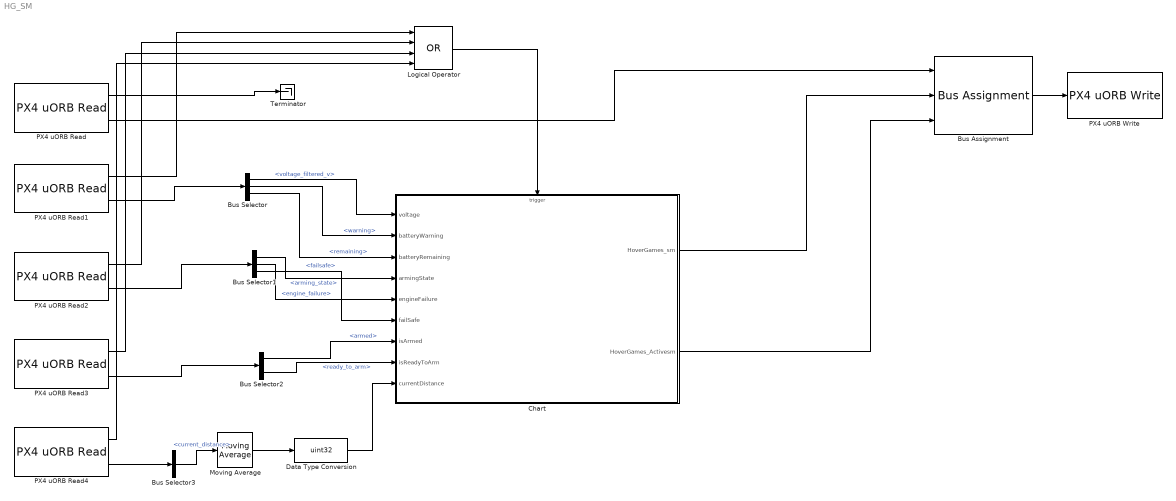
== stateflow chart HG_SM/Chart ==
  state Faulted
    HoverGames_sm = FAULTED_STATE;
  state Standby
    HoverGames_sm = STANDBY_STATE;
  state Active
    HoverGames_sm = ACTIVE_STATE;
    state Recording
      HoverGames_Activesm = RECORDING_STATE
    state Paused
      HoverGames_Activesm = PAUSED_STATE;
    state ImageCapture
      HoverGames_Activesm = IMAGE_CAPTURE_STATE
    (default) -> Paused
    Recording -> Paused [order 1] : [currentDistance <  100 || voltage < 13]
    Paused -> ImageCapture : [currentDistance >= 100]
    ImageCapture -> Paused [order 2] : [currentDistance <  100 || voltage < 13]
    ImageCapture -> Recording [order 1] : [currentDistance >= 1000]
    Recording -> ImageCapture [order 2] : [currentDistance < 1000]
  state PreActive
    HoverGames_sm = PREACTIVE_STATE;
  Faulted -> Standby : [engineFailure ==false || batteryWarning == 0 || failSafe == false]
  (default) -> Standby
  Standby -> Faulted [order 2] : [engineFailure == true || batteryWarning > 0 || failSafe == true||  batteryRemaining < 0.4]
  PreActive -> Faulted [order 3] : [engineFailure == true || batteryWarning > 0 || failSafe == true || batteryRemaining < 0.4]
  Active -> Faulted [order 1] : [engineFailure == true || batteryWarning > 0 || failSafe == true || batteryRemaining < 0.4]
  Standby -> PreActive [order 1] : [isReadyToArm==true]
  PreActive -> Standby [order 2] : [isArmed == false]
  Active -> PreActive [order 2] : [isArmed == false]
  PreActive -> Active [order 1] : [isArmed == true && armingState== ARMING_STATE_ARMED]
  data: voltage input single; batteryWarning input uint8; batteryRemaining input; armingState input uint8; engineFailure input boolean; failSafe input boolean; isArmed input boolean; isReadyToArm input boolean; currentDistance input uint32; HoverGames_sm output uint8; HoverGames_Activesm output uint8; STANDBY_STATE constant uint8 =0; PREACTIVE_STATE constant uint8 =1; ACTIVE_STATE constant uint8 =2; FAULTED_STATE constant uint8 =3; RECORDING_STATE constant uint8 =0; IMAGE_CAPTURE_STATE constant uint8 =1; PAUSED_STATE constant uint8 =2; ARMING_STATE_ARMED constant uint8 =2
  events: execute input RISING_EDGE_EVENT

//
// Academic License - for use in teaching, academic research, and meeting
// course requirements at degree granting institutions only.  Not for
// government, commercial, or other organizational use.
//
// File: HG_SM.cpp
//
// Code generated for Simulink model 'HG_SM'.
//
// Model version                  : 1.2
// Simulink Coder version         : 9.4 (R2020b) 29-Jul-2020
// C/C++ source code generated on : Tue Jan 26 21:36:23 2021
//
// Target selection: ert.tlc
// Embedded hardware selection: NXP->Cortex-M4
// Code generation objectives:
//    1. Execution efficiency
//    2. RAM efficiency
// Validation result: Not run
//
#include "HG_SM.h"

// Named constants for Chart: '<Root>/Chart'
const uint8_T ACTIVE_STATE = 2U;
const uint8_T FAULTED_STATE = 3U;
const uint8_T IMAGE_CAPTURE_STATE = 1U;
const uint8_T IN_Active = 1U;
const uint8_T IN_Faulted = 2U;
const uint8_T IN_ImageCapture = 1U;
const uint8_T IN_NO_ACTIVE_CHILD = 0U;
const uint8_T IN_Paused = 2U;
const uint8_T IN_PreActive = 3U;
const uint8_T IN_Recording = 3U;
const uint8_T IN_Standby = 4U;
const uint8_T PAUSED_STATE = 2U;
const uint8_T PREACTIVE_STATE = 1U;
const uint8_T RECORDING_STATE = 0U;
const uint8_T STANDBY_STATE = 0U;

#ifndef UCHAR_MAX
#include <limits.h>
#endif

#if ( UCHAR_MAX != (0xFFU) ) || ( SCHAR_MAX != (0x7F) )
#error Code was generated for compiler with different sized uchar/char. \
Consider adjusting Test hardware word size settings on the \
Hardware Implementation pane to match your compiler word sizes as \
defined in limits.h of the compiler. Alternatively, you can \
select the Test hardware is the same as production hardware option and \
select the Enable portable word sizes option on the Code Generation > \
Verification pane for ERT based targets, which will disable the \
preprocessor word size checks.
#endif

#if ( USHRT_MAX != (0xFFFFU) ) || ( SHRT_MAX != (0x7FFF) )
#error Code was generated for compiler with different sized ushort/short. \
Consider adjusting Test hardware word size settings on the \
Hardware Implementation pane to match your compiler word sizes as \
defined in limits.h of the compiler. Alternatively, you can \
select the Test hardware is the same as production hardware option and \
select the Enable portable word sizes option on the Code Generation > \
Verification pane for ERT based targets, which will disable the \
preprocessor word size checks.
#endif

#if ( UINT_MAX != (0xFFFFFFFFU) ) || ( INT_MAX != (0x7FFFFFFF) )
#error Code was generated for compiler with different sized uint/int. \
Consider adjusting Test hardware word size settings on the \
Hardware Implementation pane to match your compiler word sizes as \
defined in limits.h of the compiler. Alternatively, you can \
select the Test hardware is the same as production hardware option and \
select the Enable portable word sizes option on the Code Generation > \
Verification pane for ERT based targets, which will disable the \
preprocessor word size checks.
#endif

#if ( ULONG_MAX != (0xFFFFFFFFU) ) || ( LONG_MAX != (0x7FFFFFFF) )
#error Code was generated for compiler with different sized ulong/long. \
Consider adjusting Test hardware word size settings on the \
Hardware Implementation pane to match your compiler word sizes as \
defined in limits.h of the compiler. Alternatively, you can \
select the Test hardware is the same as production hardware option and \
select the Enable portable word sizes option on the Code Generation > \
Verification pane for ERT based targets, which will disable the \
preprocessor word size checks.
#endif

// Skipping ulong_long/long_long check: insufficient preprocessor integer range. 

// Model step function
void HG_SMModelClass::step()
{
  g_dsp_private_ExponentialMoving *obj;
  px4_Bus_actuator_armed b_varargout_2_1;
  px4_Bus_battery_status b_varargout_2;
  px4_Bus_distance_sensor b_varargout_2_2;
  px4_Bus_hovergames rtb_BusAssignment;
  px4_Bus_vehicle_status b_varargout_2_0;
  real32_T lambda;
  real32_T pmLocal;
  real32_T pwLocal;
  boolean_T b_varargout_1;
  boolean_T b_varargout_1_0;
  boolean_T b_varargout_1_1;
  boolean_T flag;
  boolean_T rtb_LogicalOperator;

  // MATLABSystem: '<S2>/SourceBlock' incorporates:
  //   Inport: '<S8>/In1'

  rtb_LogicalOperator = uORB_read_step(rtDW.obj_n.orbMetadataObj,
    &rtDW.obj_n.eventStructObj, &rtb_BusAssignment, false, 1.0);

  // Outputs for Enabled SubSystem: '<S2>/Enabled Subsystem' incorporates:
  //   EnablePort: '<S8>/Enable'

  if (rtb_LogicalOperator) {
    rtDW.In1_dr = rtb_BusAssignment;
  }

  // End of MATLABSystem: '<S2>/SourceBlock'
  // End of Outputs for SubSystem: '<S2>/Enabled Subsystem'

  // MATLABSystem: '<S3>/SourceBlock' incorporates:
  //   Inport: '<S9>/In1'

  rtb_LogicalOperator = uORB_read_step(rtDW.obj_o.orbMetadataObj,
    &rtDW.obj_o.eventStructObj, &b_varargout_2, false, 1.0);

  // Outputs for Enabled SubSystem: '<S3>/Enabled Subsystem' incorporates:
  //   EnablePort: '<S9>/Enable'

  if (rtb_LogicalOperator) {
    rtDW.In1 = b_varargout_2;
  }

  // End of Outputs for SubSystem: '<S3>/Enabled Subsystem'

  // MATLABSystem: '<S4>/SourceBlock' incorporates:
  //   Inport: '<S10>/In1'

  b_varargout_1 = uORB_read_step(rtDW.obj_e.orbMetadataObj,
    &rtDW.obj_e.eventStructObj, &b_varargout_2_0, false, 1.0);

  // Outputs for Enabled SubSystem: '<S4>/Enabled Subsystem' incorporates:
  //   EnablePort: '<S10>/Enable'

  if (b_varargout_1) {
    rtDW.In1_d = b_varargout_2_0;
  }

  // End of Outputs for SubSystem: '<S4>/Enabled Subsystem'

  // MATLABSystem: '<S5>/SourceBlock' incorporates:
  //   Inport: '<S11>/In1'

  b_varargout_1_0 = uORB_read_step(rtDW.obj_l.orbMetadataObj,
    &rtDW.obj_l.eventStructObj, &b_varargout_2_1, false, 1.0);

  // Outputs for Enabled SubSystem: '<S5>/Enabled Subsystem' incorporates:
  //   EnablePort: '<S11>/Enable'

  if (b_varargout_1_0) {
    rtDW.In1_l = b_varargout_2_1;
  }

  // End of Outputs for SubSystem: '<S5>/Enabled Subsystem'

  // MATLABSystem: '<S6>/SourceBlock' incorporates:
  //   Inport: '<S12>/In1'

  b_varargout_1_1 = uORB_read_step(rtDW.obj_p.orbMetadataObj,
    &rtDW.obj_p.eventStructObj, &b_varargout_2_2, false, 1.0);

  // Outputs for Enabled SubSystem: '<S6>/Enabled Subsystem' incorporates:
  //   EnablePort: '<S12>/Enable'

  if (b_varargout_1_1) {
    rtDW.In1_o = b_varargout_2_2;
  }

  // End of Outputs for SubSystem: '<S6>/Enabled Subsystem'

  // MATLABSystem: '<Root>/Moving Average'
  if (rtDW.obj.ForgettingFactor != 0.9F) {
    flag = (rtDW.obj.isInitialized == 1);
    if (flag) {
      rtDW.obj.TunablePropsChanged = true;
    }

    rtDW.obj.ForgettingFactor = 0.9F;
  }

  if (rtDW.obj.TunablePropsChanged) {
    rtDW.obj.TunablePropsChanged = false;
    obj = rtDW.obj.pStatistic;
    flag = (obj->isInitialized == 1);
    if (flag) {
      obj->TunablePropsChanged = true;
    }

    rtDW.obj.pStatistic->ForgettingFactor = rtDW.obj.ForgettingFactor;
  }

  obj = rtDW.obj.pStatistic;
  if (obj->isInitialized != 1) {
    obj->isSetupComplete = false;
    obj->isInitialized = 1;
    obj->pwN = 1.0F;
    obj->pmN = 0.0F;
    obj->plambda = obj->ForgettingFactor;
    obj->isSetupComplete = true;
    obj->TunablePropsChanged = false;
    obj->pwN = 1.0F;
    obj->pmN = 0.0F;
  }

  if (obj->TunablePropsChanged) {
    obj->TunablePropsChanged = false;
    obj->plambda = obj->ForgettingFactor;
  }

  pwLocal = obj->pwN;
  pmLocal = obj->pmN;
  lambda = obj->plambda;
  pmLocal = (1.0F - 1.0F / pwLocal) * pmLocal + 1.0F / pwLocal *
    rtDW.In1_o.current_distance;
  obj->pwN = lambda * pwLocal + 1.0F;
  obj->pmN = pmLocal;

  // Logic: '<Root>/Logical Operator' incorporates:
  //   Logic: '<S3>/NOT'
  //   Logic: '<S4>/NOT'
  //   Logic: '<S5>/NOT'
  //   Logic: '<S6>/NOT'
  //   MATLABSystem: '<S3>/SourceBlock'
  //   MATLABSystem: '<S4>/SourceBlock'
  //   MATLABSystem: '<S5>/SourceBlock'
  //   MATLABSystem: '<S6>/SourceBlock'

  rtb_LogicalOperator = ((!rtb_LogicalOperator) || (!b_varargout_1) ||
    (!b_varargout_1_0) || (!b_varargout_1_1));

  // Chart: '<Root>/Chart' incorporates:
  //   TriggerPort: '<S1>/execute'

  if (rtb_LogicalOperator && (rtPrevZCX.Chart_Trig_ZCE != POS_ZCSIG)) {
    switch (rtDW.is_c3_HG_SM) {
     case IN_Active:
      rtDW.HoverGames_sm = ACTIVE_STATE;
      switch (rtDW.is_Active) {
       case IN_ImageCapture:
        rtDW.HoverGames_Activesm = IMAGE_CAPTURE_STATE;
        break;

       case IN_Paused:
        rtDW.HoverGames_Activesm = PAUSED_STATE;
        break;

       default:
        // case IN_Recording:
        rtDW.HoverGames_Activesm = RECORDING_STATE;
        break;
      }
      break;

     case IN_Faulted:
      rtDW.HoverGames_sm = FAULTED_STATE;
      break;

     case IN_PreActive:
      rtDW.HoverGames_sm = PREACTIVE_STATE;
      break;

     default:
      // case IN_Standby:
      rtDW.HoverGames_sm = STANDBY_STATE;
      break;
    }

    switch (rtDW.is_c3_HG_SM) {
     case IN_Active:
      if (rtDW.In1_d.engine_failure || (rtDW.In1.warning > 0) ||
          rtDW.In1_d.failsafe || (rtDW.In1.remaining < 0.4)) {
        rtDW.is_Active = IN_NO_ACTIVE_CHILD;
        rtDW.is_c3_HG_SM = IN_Faulted;
      } else if (!rtDW.In1_l.armed) {
        rtDW.is_Active = IN_NO_ACTIVE_CHILD;
        rtDW.is_c3_HG_SM = IN_PreActive;
      } else {
        switch (rtDW.is_Active) {
         case IN_ImageCapture:
          // DataTypeConversion: '<Root>/Data Type Conversion' incorporates:
          //   MATLABSystem: '<Root>/Moving Average'

          if (static_cast<uint32_T>(pmLocal) >= 1000U) {
            rtDW.is_Active = IN_Recording;
          } else {
            if ((static_cast<uint32_T>(pmLocal) < 100U) ||
                (rtDW.In1.voltage_filtered_v < 13.0F)) {
              rtDW.is_Active = IN_Paused;
            }
          }
          break;

         case IN_Paused:
          // DataTypeConversion: '<Root>/Data Type Conversion' incorporates:
          //   MATLABSystem: '<Root>/Moving Average'

          if (static_cast<uint32_T>(pmLocal) >= 100U) {
            rtDW.is_Active = IN_ImageCapture;
          }
          break;

         default:
          // DataTypeConversion: '<Root>/Data Type Conversion' incorporates:
          //   MATLABSystem: '<Root>/Moving Average'

          // case IN_Recording:
          if ((static_cast<uint32_T>(pmLocal) < 100U) ||
              (rtDW.In1.voltage_filtered_v < 13.0F)) {
            rtDW.is_Active = IN_Paused;
          } else {
            if (static_cast<uint32_T>(pmLocal) < 1000U) {
              rtDW.is_Active = IN_ImageCapture;
            }
          }
          break;
        }
      }
      break;

     case IN_Faulted:
      if ((!rtDW.In1_d.engine_failure) || (rtDW.In1.warning == 0) ||
          (!rtDW.In1_d.failsafe)) {
        rtDW.is_c3_HG_SM = IN_Standby;
      }
      break;

     case IN_PreActive:
      if (rtDW.In1_l.armed && (rtDW.In1_d.arming_state == 2)) {
        rtDW.is_c3_HG_SM = IN_Active;
        rtDW.is_Active = IN_Paused;
      } else if (!rtDW.In1_l.armed) {
        rtDW.is_c3_HG_SM = IN_Standby;
      } else {
        if (rtDW.In1_d.engine_failure || (rtDW.In1.warning > 0) ||
            rtDW.In1_d.failsafe || (rtDW.In1.remaining < 0.4)) {
          rtDW.is_c3_HG_SM = IN_Faulted;
        }
      }
      break;

     default:
      // case IN_Standby:
      if (rtDW.In1_l.ready_to_arm) {
        rtDW.is_c3_HG_SM = IN_PreActive;
      } else {
        if (rtDW.In1_d.engine_failure || (rtDW.In1.warning > 0) ||
            rtDW.In1_d.failsafe || (rtDW.In1.remaining < 0.4)) {
          rtDW.is_c3_HG_SM = IN_Faulted;
        }
      }
      break;
    }
  }

  rtPrevZCX.Chart_Trig_ZCE = rtb_LogicalOperator;

  // BusAssignment: '<Root>/Bus Assignment' incorporates:
  //   Inport: '<S8>/In1'

  rtb_BusAssignment = rtDW.In1_dr;
  rtb_BusAssignment.hovergames_sm = rtDW.HoverGames_sm;
  rtb_BusAssignment.hovergames_activesm = rtDW.HoverGames_Activesm;

  // MATLABSystem: '<S7>/SinkBlock' incorporates:
  //   BusAssignment: '<Root>/Bus Assignment'

  uORB_write_step(rtDW.obj_j.orbMetadataObj, &rtDW.obj_j.orbAdvertiseObj,
                  &rtb_BusAssignment);
}
